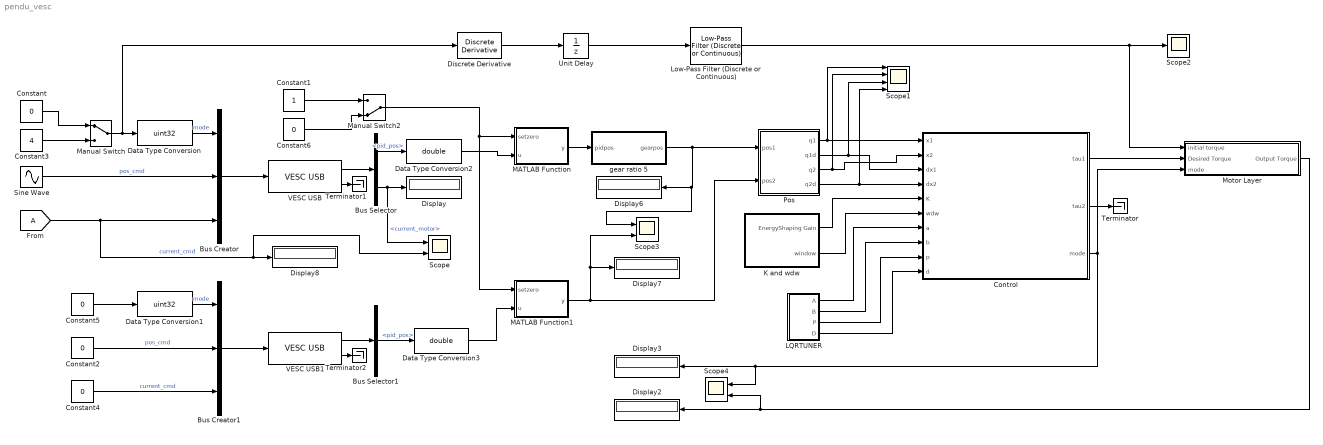
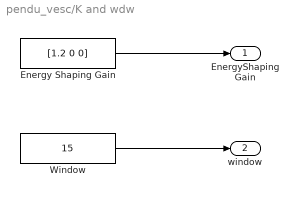
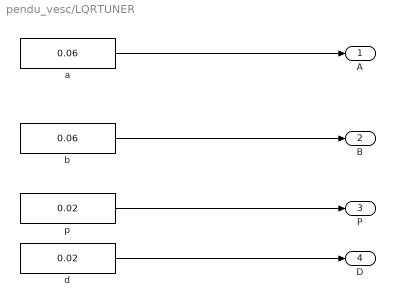
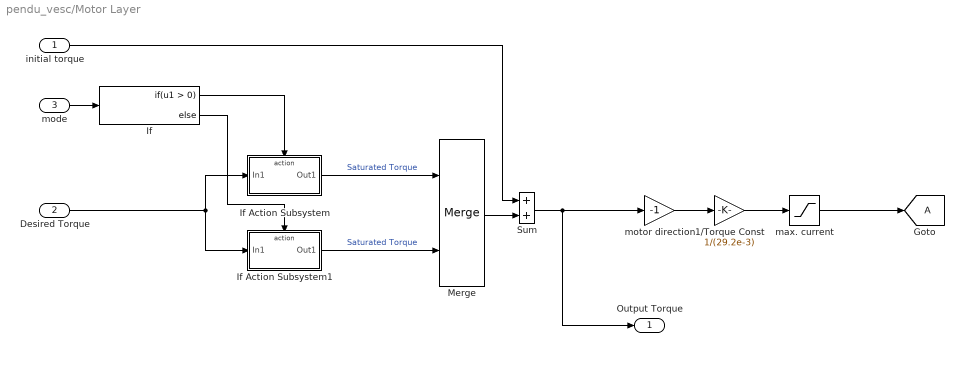
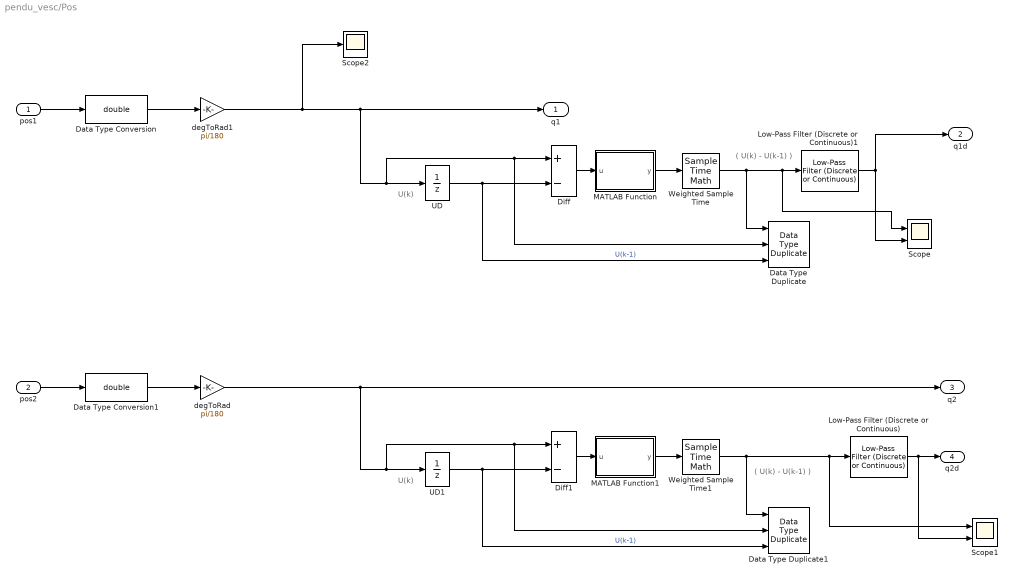
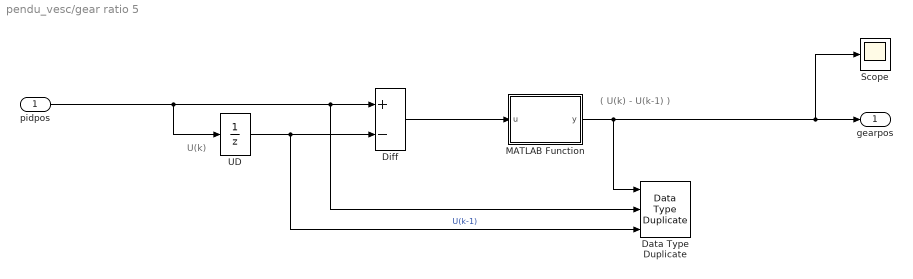
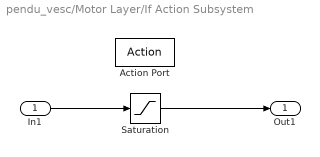
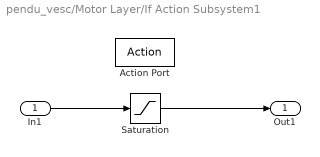
== matlab function pendu_vesc/MATLAB Function ==
function y = fcn(setzero,u)

persistent initpos
if isempty(initpos)
    initpos = 0;
end

if setzero
    initpos = u + 0;
end


y = u - initpos;
y = y - 360*floor(y/360);

== matlab function pendu_vesc/Control ==
function [tau1,tau2,mode] = EnergyShaping_w_LQR(x1,x2,dx1,dx2,K,wdw,a,b,p,d)
% Match the setup in simulation
x = [x1;x2;dx1;dx2]; 

persistent model;
if isempty(model)
    model = Model();
end

%%%%
q  = x(1:2,:);
qd = x(3:4,:);

[tau,mode] = acrobotControlLaw_LQR(x,wdw,a,b,p,d);

if isempty(tau) % if LQR control law is not applicable, 
                %    then using Energy Shaping approach
    mode = 0;
    g  = model.g;
    %
    l1 = model.l1; lc1 = model.lc1; l2 = model.l2; lc2 = model.lc2;
    m1 = model.m1; m2 = model.m2;
    I1 = model.I1; I2 = model.I2;
    b1 = model.b1; b2 = model.b2;

    %%%%
    q  = x(1:2,:);
    qd = x(3:4,:);

    %%%%
    c = cos(q(1:2,:));  s = sin(q(1:2,:));  c12 = cos(q(1,:)+q(2,:));
    
    [M,~] = ManipulatorEquation(model, x);
    %%%% energy shaping
    E_des = m1.*g.* lc1 + m2.*g.*(l1+lc2);

    KE = 0.5*qd.'*M*qd;
    PE = -m1*g*lc1*c(1) - m2*g*(l1*c(1)+lc2*c12);
    E = KE + PE;

    E_tilda = E_des - E;

%     ke = 1;    %0.75  %5   %0.05;
%     kd = 0*ke/10;  %25   %ke/15;
%     ks = 0*kd/5;   %8   %kd/10;
    ke = K(1);
    kd = K(2)*ke;
    ks = K(3)*kd;
    
    q(1) = q(1) - 2*pi*floor(q(1)./(2*pi));
    d_tilda = pi-q(1);
    s_tilda = 0-qd(1);
    
    % P-saturation
    PD = d_tilda*kd + s_tilda*ks;
    if abs(PD) > 1
        PD = 1 * sign(PD);
    end
    
    tau = [(ke.*E_tilda.*qd(1)+PD); 0]; 
%     tau = [(0); 0]; 
    
end
tau=(18/90)*tau;
tau1 = tau(1);

tau2 = tau(2);
end

== matlab function pendu_vesc/MATLAB Function1 ==
function y = fcn(setzero,u)

persistent initpos
if isempty(initpos)
    initpos = 0;
end

if setzero
    initpos = u + 0;
end


y = u - initpos;
y = y - 360*floor(y/360);

== matlab function pendu_vesc/Pos/MATLAB Function ==
function y = fcn(u)

u_rev = (u >= 0)*(2*pi - u) + (u < 0)*(2*pi + u);

if abs(u_rev) > abs(u)
   y = u;
else
   y = (u < 0)*u_rev - (u >= 0)*u_rev;
end

== matlab function pendu_vesc/Pos/MATLAB Function1 ==
function y = fcn(u)

u_rev = (u >= 0)*(2*pi - u) + (u < 0)*(2*pi + u);

if abs(u_rev) > abs(u)
   y = u;
else
   y = (u < 0)*u_rev - (u >= 0)*u_rev;
end

== matlab function pendu_vesc/gear ratio 5/MATLAB Function ==
function y = fcn(u)

persistent pos1
if isempty(pos1)
    pos1 = 0;
end

u_rev = (u >= 0)*(360 - u) + (u < 0)*(360 + u);
if abs(u_rev) < abs(u)
   u = (u < 0)*u_rev - (u >= 0)*u_rev;
end

u = u/5;
pos1 = pos1 + u;
pos1 = mod((pos1),360);
y = pos1;

end

//
// Academic License - for use in teaching, academic research, and meeting
// course requirements at degree granting institutions only.  Not for
// government, commercial, or other organizational use.
//
// File: pendu_vesc.cpp
//
// Code generated for Simulink model 'pendu_vesc'.
//
// Model version                  : 1.79
// Simulink Coder version         : 9.0 (R2018b) 24-May-2018
// C/C++ source code generated on : Mon Jun 15 15:44:10 2020
//
// Target selection: ert.tlc
// Embedded hardware selection: ARM Compatible->ARM Cortex
// Code generation objectives: Unspecified
// Validation result: Not run
//
#include "pendu_vesc.h"
#include "pendu_vesc_private.h"
#include "pendu_vesc_dt.h"

// Block signals (default storage)
B_pendu_vesc_T pendu_vesc_B;

// Block states (default storage)
DW_pendu_vesc_T pendu_vesc_DW;

// Real-time model
RT_MODEL_pendu_vesc_T pendu_vesc_M_;
RT_MODEL_pendu_vesc_T *const pendu_vesc_M = &pendu_vesc_M_;

//
// Output and update for action system:
//    '<S8>/If Action Subsystem'
//    '<S8>/If Action Subsystem1'
//
void pendu_vesc_IfActionSubsystem(real_T rtu_In1, real_T *rty_Out1,
  P_IfActionSubsystem_pendu_ves_T *localP)
{
  // Saturate: '<S18>/Saturation'
  if (rtu_In1 > localP->Saturation_UpperSat) {
    *rty_Out1 = localP->Saturation_UpperSat;
  } else if (rtu_In1 < localP->Saturation_LowerSat) {
    *rty_Out1 = localP->Saturation_LowerSat;
  } else {
    *rty_Out1 = rtu_In1;
  }

  // End of Saturate: '<S18>/Saturation'
}

//
// Output and update for atomic system:
//    '<S9>/MATLAB Function'
//    '<S9>/MATLAB Function1'
//
void pendu_vesc_MATLABFunction(real_T rtu_u, real_T *rty_y)
{
  real_T u_rev;
  u_rev = (real_T)(rtu_u >= 0.0) * (6.2831853071795862 - rtu_u) + (real_T)(rtu_u
    < 0.0) * (6.2831853071795862 + rtu_u);
  if (std::abs(u_rev) > std::abs(rtu_u)) {
    *rty_y = rtu_u;
  } else {
    *rty_y = (real_T)(rtu_u < 0.0) * u_rev - (real_T)(rtu_u >= 0.0) * u_rev;
  }
}

// Model step function
void pendu_vesc_step(void)
{
  // local block i/o variables
  real_T rtb_uT;
  real_T rtb_uT_o;
  real_T rtb_uT_e;
  real_T rtb_TSamp;
  boolean_T rtb_Compare;
  boolean_T rtb_Compare_o;
  boolean_T rtb_Compare_c;
  static const real_T d[16] = { 56.3272, 49.3325, 11.1626, 4.3446, 49.3325,
    45.0528, 9.9269, 3.866, 11.1626, 9.9269, 2.2983, 0.894, 4.3446, 3.866, 0.894,
    0.3492 };

  real_T rtb_Integrator_p;
  int32_T i;
  int32_T tau_size_idx_1;
  int32_T x_tilda_tmp;

  // Reset subsysRan breadcrumbs
  srClearBC(pendu_vesc_DW.IfActionSubsystem.IfActionSubsystem_SubsysRanBC);

  // RelationalOperator: '<S26>/Compare' incorporates:
  //   Constant: '<S24>/Time constant'
  //   Constant: '<S26>/Constant'
  //   Sum: '<S24>/Sum1'

  rtb_Compare = (pendu_vesc_P.LowPassFilterDiscreteorContin_g -
                 pendu_vesc_B.Probe_l[0] <= pendu_vesc_P.Constant_Value_i);

  // ManualSwitch: '<Root>/Manual Switch2' incorporates:
  //   Constant: '<Root>/Constant1'
  //   Constant: '<Root>/Constant6'

  if (pendu_vesc_P.ManualSwitch2_CurrentSetting == 1) {
    pendu_vesc_B.ManualSwitch2 = pendu_vesc_P.Constant1_Value;
  } else {
    pendu_vesc_B.ManualSwitch2 = pendu_vesc_P.Constant6_Value;
  }

  // End of ManualSwitch: '<Root>/Manual Switch2'

  // ManualSwitch: '<Root>/Manual Switch' incorporates:
  //   Constant: '<Root>/Constant'
  //   Constant: '<Root>/Constant3'

  if (pendu_vesc_P.ManualSwitch_CurrentSetting == 1) {
    pendu_vesc_B.ManualSwitch = pendu_vesc_P.Constant_Value;
  } else {
    pendu_vesc_B.ManualSwitch = pendu_vesc_P.Constant3_Value;
  }

  // End of ManualSwitch: '<Root>/Manual Switch'

  // Outputs for Atomic SubSystem: '<Root>/VESC USB'
  // S-Function (sf_vesc_usb): '<S10>/S-Function Builder5' incorporates:
  //   Constant: '<S10>/PAR_CURR_LIMS'
  //   Constant: '<S10>/PAR_PID_GAINS'

  sf_vesc_usb_Outputs_wrapper(&pendu_vesc_B.SFunctionBuilder5_o1_c,
    &pendu_vesc_B.SFunctionBuilder5_o2_b, &pendu_vesc_B.SFunctionBuilder5_o3_o,
    &pendu_vesc_DW.SFunctionBuilder5_DSTATE_i,
    &pendu_vesc_DW.SFunctionBuilder5_PWORK_k, pendu_vesc_P.SFunctionBuilder5_P1,
    15);

  // SignalConversion: '<S10>/BusConversion_InsertedFor_Bus Selector2_at_inport_0' 
  pendu_vesc_B.l_current_max_l =
    pendu_vesc_B.SFunctionBuilder5_o2_b.l_current_max;

  // SignalConversion: '<S10>/BusConversion_InsertedFor_Bus Selector2_at_inport_0' 
  pendu_vesc_B.l_current_min_b =
    pendu_vesc_B.SFunctionBuilder5_o2_b.l_current_min;

  // SignalConversion: '<S10>/BusConversion_InsertedFor_Bus Selector2_at_inport_0' 
  pendu_vesc_B.l_in_current_max_d =
    pendu_vesc_B.SFunctionBuilder5_o2_b.l_in_current_max;

  // SignalConversion: '<S10>/BusConversion_InsertedFor_Bus Selector2_at_inport_0' 
  pendu_vesc_B.l_in_current_min_p =
    pendu_vesc_B.SFunctionBuilder5_o2_b.l_in_current_min;

  // SignalConversion: '<S10>/BusConversion_InsertedFor_Bus Selector2_at_inport_0' 
  pendu_vesc_B.l_abs_current_max_e =
    pendu_vesc_B.SFunctionBuilder5_o2_b.l_abs_current_max;

  // SignalConversion: '<S10>/BusConversion_InsertedFor_Bus Selector1_at_inport_0' 
  pendu_vesc_B.p_pid_kp_m = pendu_vesc_B.SFunctionBuilder5_o2_b.p_pid_kp;

  // SignalConversion: '<S10>/BusConversion_InsertedFor_Bus Selector1_at_inport_0' 
  pendu_vesc_B.p_pid_ki_k = pendu_vesc_B.SFunctionBuilder5_o2_b.p_pid_ki;

  // SignalConversion: '<S10>/BusConversion_InsertedFor_Bus Selector1_at_inport_0' 
  pendu_vesc_B.p_pid_kd_m = pendu_vesc_B.SFunctionBuilder5_o2_b.p_pid_kd;

  // SignalConversion: '<S10>/BusConversion_InsertedFor_Bus Selector1_at_inport_0' 
  pendu_vesc_B.p_pid_kd_filter_p =
    pendu_vesc_B.SFunctionBuilder5_o2_b.p_pid_kd_filter;

  // SignalConversion: '<S10>/BusConversion_InsertedFor_Bus Selector1_at_inport_0' 
  pendu_vesc_B.p_pid_ang_div_j =
    pendu_vesc_B.SFunctionBuilder5_o2_b.p_pid_ang_div;

  // Switch: '<S10>/Switch' incorporates:
  //   Constant: '<S10>/PAR_MASK_MODE'
  //   DataTypeConversion: '<Root>/Data Type Conversion'

  if (pendu_vesc_P.PAR_MASK_MODE_Value != 0U) {
    pendu_vesc_B.Switch_d = pendu_vesc_P.PAR_MASK_MODE_Value;
  } else {
    // DataTypeConversion: '<Root>/Data Type Conversion'
    pendu_vesc_B.M12 = std::floor(pendu_vesc_B.ManualSwitch);
    if (rtIsNaN(pendu_vesc_B.M12) || rtIsInf(pendu_vesc_B.M12)) {
      pendu_vesc_B.M12 = 0.0;
    } else {
      pendu_vesc_B.M12 = std::fmod(pendu_vesc_B.M12, 4.294967296E+9);
    }

    pendu_vesc_B.Switch_d = pendu_vesc_B.M12 < 0.0 ? (uint32_T)-(int32_T)
      (uint32_T)-pendu_vesc_B.M12 : (uint32_T)pendu_vesc_B.M12;
  }

  // End of Switch: '<S10>/Switch'
  // End of Outputs for SubSystem: '<Root>/VESC USB'

  // Outputs for Atomic SubSystem: '<Root>/VESC USB1'
  // S-Function (sf_vesc_usb): '<S11>/S-Function Builder5' incorporates:
  //   Constant: '<Root>/Constant2'
  //   Constant: '<Root>/Constant4'
  //   Constant: '<S11>/PAR_CURR_LIMS'
  //   Constant: '<S11>/PAR_PID_GAINS'

  sf_vesc_usb_Outputs_wrapper(&pendu_vesc_B.SFunctionBuilder5_o1,
    &pendu_vesc_B.SFunctionBuilder5_o2, &pendu_vesc_B.SFunctionBuilder5_o3,
    &pendu_vesc_DW.SFunctionBuilder5_DSTATE,
    &pendu_vesc_DW.SFunctionBuilder5_PWORK, pendu_vesc_P.SFunctionBuilder5_P1_h,
    15);

  // SignalConversion: '<S11>/BusConversion_InsertedFor_Bus Selector2_at_inport_0' 
  pendu_vesc_B.l_current_max = pendu_vesc_B.SFunctionBuilder5_o2.l_current_max;

  // SignalConversion: '<S11>/BusConversion_InsertedFor_Bus Selector2_at_inport_0' 
  pendu_vesc_B.l_current_min = pendu_vesc_B.SFunctionBuilder5_o2.l_current_min;

  // SignalConversion: '<S11>/BusConversion_InsertedFor_Bus Selector2_at_inport_0' 
  pendu_vesc_B.l_in_current_max =
    pendu_vesc_B.SFunctionBuilder5_o2.l_in_current_max;

  // SignalConversion: '<S11>/BusConversion_InsertedFor_Bus Selector2_at_inport_0' 
  pendu_vesc_B.l_in_current_min =
    pendu_vesc_B.SFunctionBuilder5_o2.l_in_current_min;

  // SignalConversion: '<S11>/BusConversion_InsertedFor_Bus Selector2_at_inport_0' 
  pendu_vesc_B.l_abs_current_max =
    pendu_vesc_B.SFunctionBuilder5_o2.l_abs_current_max;

  // SignalConversion: '<S11>/BusConversion_InsertedFor_Bus Selector1_at_inport_0' 
  pendu_vesc_B.p_pid_kp = pendu_vesc_B.SFunctionBuilder5_o2.p_pid_kp;

  // SignalConversion: '<S11>/BusConversion_InsertedFor_Bus Selector1_at_inport_0' 
  pendu_vesc_B.p_pid_ki = pendu_vesc_B.SFunctionBuilder5_o2.p_pid_ki;

  // SignalConversion: '<S11>/BusConversion_InsertedFor_Bus Selector1_at_inport_0' 
  pendu_vesc_B.p_pid_kd = pendu_vesc_B.SFunctionBuilder5_o2.p_pid_kd;

  // SignalConversion: '<S11>/BusConversion_InsertedFor_Bus Selector1_at_inport_0' 
  pendu_vesc_B.p_pid_kd_filter =
    pendu_vesc_B.SFunctionBuilder5_o2.p_pid_kd_filter;

  // SignalConversion: '<S11>/BusConversion_InsertedFor_Bus Selector1_at_inport_0' 
  pendu_vesc_B.p_pid_ang_div = pendu_vesc_B.SFunctionBuilder5_o2.p_pid_ang_div;

  // Switch: '<S11>/Switch' incorporates:
  //   Constant: '<S11>/PAR_MASK_MODE'
  //   DataTypeConversion: '<Root>/Data Type Conversion1'

  if (pendu_vesc_P.PAR_MASK_MODE_Value_k != 0U) {
    pendu_vesc_B.Switch = pendu_vesc_P.PAR_MASK_MODE_Value_k;
  } else {
    // DataTypeConversion: '<Root>/Data Type Conversion1' incorporates:
    //   Constant: '<Root>/Constant5'

    pendu_vesc_B.M12 = std::floor(pendu_vesc_P.Constant5_Value);
    if (rtIsNaN(pendu_vesc_B.M12) || rtIsInf(pendu_vesc_B.M12)) {
      pendu_vesc_B.M12 = 0.0;
    } else {
      pendu_vesc_B.M12 = std::fmod(pendu_vesc_B.M12, 4.294967296E+9);
    }

    pendu_vesc_B.Switch = pendu_vesc_B.M12 < 0.0 ? (uint32_T)-(int32_T)(uint32_T)
      -pendu_vesc_B.M12 : (uint32_T)pendu_vesc_B.M12;
  }

  // End of Switch: '<S11>/Switch'
  // End of Outputs for SubSystem: '<Root>/VESC USB1'

  // MATLAB Function: '<Root>/MATLAB Function1' incorporates:
  //   DataTypeConversion: '<Root>/Data Type Conversion3'

  if (pendu_vesc_B.ManualSwitch2 != 0.0) {
    pendu_vesc_DW.initpos = pendu_vesc_B.SFunctionBuilder5_o1.pid_pos;
  }

  pendu_vesc_B.y_d = pendu_vesc_B.SFunctionBuilder5_o1.pid_pos -
    pendu_vesc_DW.initpos;
  pendu_vesc_B.y_d -= std::floor(pendu_vesc_B.y_d / 360.0) * 360.0;

  // End of MATLAB Function: '<Root>/MATLAB Function1'

  // Gain: '<S9>/degToRad'
  pendu_vesc_B.degToRad = pendu_vesc_P.degToRad_Gain * pendu_vesc_B.y_d;

  // MATLAB Function: '<S9>/MATLAB Function1' incorporates:
  //   Sum: '<S9>/Diff1'
  //   UnitDelay: '<S9>/UD1'
  //
  //  Block description for '<S9>/Diff1':
  //
  //   Add in CPU
  //
  //  Block description for '<S9>/UD1':
  //
  //   Store in Global RAM

  pendu_vesc_MATLABFunction(pendu_vesc_B.degToRad - pendu_vesc_DW.UD1_DSTATE,
    &rtb_Integrator_p);

  // SampleTimeMath: '<S9>/Weighted Sample Time1'
  //
  //  About '<S9>/Weighted Sample Time1':
  //   y = u * K where K = 1 / ( w * Ts )

  pendu_vesc_B.WeightedSampleTime1 = rtb_Integrator_p *
    pendu_vesc_P.WeightedSampleTime1_WtEt;

  // Gain: '<S20>/K'
  rtb_Integrator_p = pendu_vesc_P.LowPassFilterDiscreteorContinuo *
    pendu_vesc_B.WeightedSampleTime1;

  // DiscreteIntegrator: '<S28>/Integrator'
  if (pendu_vesc_DW.Integrator_IC_LOADING != 0) {
    pendu_vesc_DW.Integrator_DSTATE = rtb_Integrator_p;
    if (pendu_vesc_DW.Integrator_DSTATE >= pendu_vesc_P.Integrator_UpperSat) {
      pendu_vesc_DW.Integrator_DSTATE = pendu_vesc_P.Integrator_UpperSat;
    } else {
      if (pendu_vesc_DW.Integrator_DSTATE <= pendu_vesc_P.Integrator_LowerSat) {
        pendu_vesc_DW.Integrator_DSTATE = pendu_vesc_P.Integrator_LowerSat;
      }
    }
  }

  if (rtb_Compare || (pendu_vesc_DW.Integrator_PrevResetState != 0)) {
    pendu_vesc_DW.Integrator_DSTATE = rtb_Integrator_p;
    if (pendu_vesc_DW.Integrator_DSTATE >= pendu_vesc_P.Integrator_UpperSat) {
      pendu_vesc_DW.Integrator_DSTATE = pendu_vesc_P.Integrator_UpperSat;
    } else {
      if (pendu_vesc_DW.Integrator_DSTATE <= pendu_vesc_P.Integrator_LowerSat) {
        pendu_vesc_DW.Integrator_DSTATE = pendu_vesc_P.Integrator_LowerSat;
      }
    }
  }

  if (pendu_vesc_DW.Integrator_DSTATE >= pendu_vesc_P.Integrator_UpperSat) {
    pendu_vesc_DW.Integrator_DSTATE = pendu_vesc_P.Integrator_UpperSat;
  } else {
    if (pendu_vesc_DW.Integrator_DSTATE <= pendu_vesc_P.Integrator_LowerSat) {
      pendu_vesc_DW.Integrator_DSTATE = pendu_vesc_P.Integrator_LowerSat;
    }
  }

  // Saturate: '<S28>/Saturation' incorporates:
  //   DiscreteIntegrator: '<S28>/Integrator'

  if (pendu_vesc_DW.Integrator_DSTATE > pendu_vesc_P.Saturation_UpperSat) {
    pendu_vesc_B.Saturation = pendu_vesc_P.Saturation_UpperSat;
  } else if (pendu_vesc_DW.Integrator_DSTATE < pendu_vesc_P.Saturation_LowerSat)
  {
    pendu_vesc_B.Saturation = pendu_vesc_P.Saturation_LowerSat;
  } else {
    pendu_vesc_B.Saturation = pendu_vesc_DW.Integrator_DSTATE;
  }

  // End of Saturate: '<S28>/Saturation'
  // MinMax: '<S24>/Max' incorporates:
  //   Constant: '<S24>/Time constant'

  if ((pendu_vesc_B.Probe_l[0] > pendu_vesc_P.LowPassFilterDiscreteorContin_g) ||
      rtIsNaN(pendu_vesc_P.LowPassFilterDiscreteorContin_g)) {
    pendu_vesc_B.Integrator_o = pendu_vesc_B.Probe_l[0];
  } else {
    pendu_vesc_B.Integrator_o = pendu_vesc_P.LowPassFilterDiscreteorContin_g;
  }

  // End of MinMax: '<S24>/Max'

  // Product: '<S20>/1//T' incorporates:
  //   Fcn: '<S24>/Avoid Divide by Zero'
  //   Sum: '<S20>/Sum1'

  rtb_uT = 1.0 / ((real_T)(pendu_vesc_B.Integrator_o == 0.0) *
                  2.2204460492503131e-16 + pendu_vesc_B.Integrator_o) *
    (rtb_Integrator_p - pendu_vesc_B.Saturation);

  // MATLAB Function: '<Root>/MATLAB Function' incorporates:
  //   DataTypeConversion: '<Root>/Data Type Conversion2'

  if (pendu_vesc_B.ManualSwitch2 != 0.0) {
    pendu_vesc_DW.initpos_d = pendu_vesc_B.SFunctionBuilder5_o1_c.pid_pos;
  }

  pendu_vesc_B.y_h = pendu_vesc_B.SFunctionBuilder5_o1_c.pid_pos -
    pendu_vesc_DW.initpos_d;
  pendu_vesc_B.y_h -= std::floor(pendu_vesc_B.y_h / 360.0) * 360.0;

  // End of MATLAB Function: '<Root>/MATLAB Function'

  // Sum: '<S12>/Diff' incorporates:
  //   UnitDelay: '<S12>/UD'
  //
  //  Block description for '<S12>/Diff':
  //
  //   Add in CPU
  //
  //  Block description for '<S12>/UD':
  //
  //   Store in Global RAM

  pendu_vesc_B.ManualSwitch2 = pendu_vesc_B.y_h - pendu_vesc_DW.UD_DSTATE;

  // MATLAB Function: '<S12>/MATLAB Function'
  rtb_Integrator_p = (real_T)(pendu_vesc_B.ManualSwitch2 >= 0.0) * (360.0 -
    pendu_vesc_B.ManualSwitch2) + (real_T)(pendu_vesc_B.ManualSwitch2 < 0.0) *
    (360.0 + pendu_vesc_B.ManualSwitch2);
  if (std::abs(rtb_Integrator_p) < std::abs(pendu_vesc_B.ManualSwitch2)) {
    pendu_vesc_B.ManualSwitch2 = (real_T)(pendu_vesc_B.ManualSwitch2 < 0.0) *
      rtb_Integrator_p - (real_T)(pendu_vesc_B.ManualSwitch2 >= 0.0) *
      rtb_Integrator_p;
  }

  pendu_vesc_B.ManualSwitch2 /= 5.0;
  pendu_vesc_DW.pos1 += pendu_vesc_B.ManualSwitch2;
  pendu_vesc_B.ManualSwitch2 = pendu_vesc_DW.pos1;
  if ((!rtIsInf(pendu_vesc_B.ManualSwitch2)) && (!rtIsNaN
       (pendu_vesc_B.ManualSwitch2))) {
    if (pendu_vesc_B.ManualSwitch2 == 0.0) {
      pendu_vesc_DW.pos1 = 0.0;
    } else {
      pendu_vesc_DW.pos1 = std::fmod(pendu_vesc_B.ManualSwitch2, 360.0);
      if (pendu_vesc_DW.pos1 == 0.0) {
        pendu_vesc_DW.pos1 = 0.0;
      } else {
        if (pendu_vesc_B.ManualSwitch2 < 0.0) {
          pendu_vesc_DW.pos1 += 360.0;
        }
      }
    }
  } else {
    pendu_vesc_DW.pos1 = (rtNaN);
  }

  pendu_vesc_B.y = pendu_vesc_DW.pos1;

  // End of MATLAB Function: '<S12>/MATLAB Function'

  // Gain: '<S9>/degToRad1'
  pendu_vesc_B.degToRad1 = pendu_vesc_P.degToRad1_Gain * pendu_vesc_B.y;

  // RelationalOperator: '<S31>/Compare' incorporates:
  //   Constant: '<S29>/Time constant'
  //   Constant: '<S31>/Constant'
  //   Sum: '<S29>/Sum1'

  rtb_Compare_o = (pendu_vesc_P.LowPassFilterDiscreteorContin_j -
                   pendu_vesc_B.Probe_g[0] <= pendu_vesc_P.Constant_Value_c);

  // MATLAB Function: '<S9>/MATLAB Function' incorporates:
  //   Sum: '<S9>/Diff'
  //   UnitDelay: '<S9>/UD'
  //
  //  Block description for '<S9>/Diff':
  //
  //   Add in CPU
  //
  //  Block description for '<S9>/UD':
  //
  //   Store in Global RAM

  pendu_vesc_MATLABFunction(pendu_vesc_B.degToRad1 - pendu_vesc_DW.UD_DSTATE_i,
    &rtb_Integrator_p);

  // SampleTimeMath: '<S9>/Weighted Sample Time'
  //
  //  About '<S9>/Weighted Sample Time':
  //   y = u * K where K = 1 / ( w * Ts )

  pendu_vesc_B.WeightedSampleTime = rtb_Integrator_p *
    pendu_vesc_P.WeightedSampleTime_WtEt;

  // Gain: '<S21>/K'
  pendu_vesc_B.ManualSwitch2 = pendu_vesc_P.LowPassFilterDiscreteorContin_o *
    pendu_vesc_B.WeightedSampleTime;

  // DiscreteIntegrator: '<S33>/Integrator'
  if (pendu_vesc_DW.Integrator_IC_LOADING_h != 0) {
    pendu_vesc_DW.Integrator_DSTATE_c = pendu_vesc_B.ManualSwitch2;
    if (pendu_vesc_DW.Integrator_DSTATE_c >= pendu_vesc_P.Integrator_UpperSat_d)
    {
      pendu_vesc_DW.Integrator_DSTATE_c = pendu_vesc_P.Integrator_UpperSat_d;
    } else {
      if (pendu_vesc_DW.Integrator_DSTATE_c <=
          pendu_vesc_P.Integrator_LowerSat_k) {
        pendu_vesc_DW.Integrator_DSTATE_c = pendu_vesc_P.Integrator_LowerSat_k;
      }
    }
  }

  if (rtb_Compare_o || (pendu_vesc_DW.Integrator_PrevResetState_j != 0)) {
    pendu_vesc_DW.Integrator_DSTATE_c = pendu_vesc_B.ManualSwitch2;
    if (pendu_vesc_DW.Integrator_DSTATE_c >= pendu_vesc_P.Integrator_UpperSat_d)
    {
      pendu_vesc_DW.Integrator_DSTATE_c = pendu_vesc_P.Integrator_UpperSat_d;
    } else {
      if (pendu_vesc_DW.Integrator_DSTATE_c <=
          pendu_vesc_P.Integrator_LowerSat_k) {
        pendu_vesc_DW.Integrator_DSTATE_c = pendu_vesc_P.Integrator_LowerSat_k;
      }
    }
  }

  if (pendu_vesc_DW.Integrator_DSTATE_c >= pendu_vesc_P.Integrator_UpperSat_d) {
    pendu_vesc_DW.Integrator_DSTATE_c = pendu_vesc_P.Integrator_UpperSat_d;
  } else {
    if (pendu_vesc_DW.Integrator_DSTATE_c <= pendu_vesc_P.Integrator_LowerSat_k)
    {
      pendu_vesc_DW.Integrator_DSTATE_c = pendu_vesc_P.Integrator_LowerSat_k;
    }
  }

  // Saturate: '<S33>/Saturation' incorporates:
  //   DiscreteIntegrator: '<S33>/Integrator'

  if (pendu_vesc_DW.Integrator_DSTATE_c > pendu_vesc_P.Saturation_UpperSat_c) {
    pendu_vesc_B.Saturation_e = pendu_vesc_P.Saturation_UpperSat_c;
  } else if (pendu_vesc_DW.Integrator_DSTATE_c <
             pendu_vesc_P.Saturation_LowerSat_m) {
    pendu_vesc_B.Saturation_e = pendu_vesc_P.Saturation_LowerSat_m;
  } else {
    pendu_vesc_B.Saturation_e = pendu_vesc_DW.Integrator_DSTATE_c;
  }

  // End of Saturate: '<S33>/Saturation'

  // MATLAB Function: '<Root>/Control' incorporates:
  //   Constant: '<S3>/Energy Shaping Gain'
  //   Constant: '<S3>/Window'
  //   Constant: '<S4>/a'
  //   Constant: '<S4>/b'
  //   Constant: '<S4>/d'
  //   Constant: '<S4>/p'

  rtb_Integrator_p = pendu_vesc_B.degToRad1 - std::floor(pendu_vesc_B.degToRad1 /
    6.2831853071795862) * 6.2831853071795862;
  pendu_vesc_B.Integrator_o = pendu_vesc_B.degToRad - std::floor
    ((pendu_vesc_B.degToRad + 3.1415926535897931) / 6.2831853071795862) *
    6.2831853071795862;
  pendu_vesc_B.x_tilda[0] = rtb_Integrator_p - 3.1415926535897931;
  pendu_vesc_B.x_tilda[2] = pendu_vesc_B.Saturation_e;
  pendu_vesc_B.x_tilda[1] = pendu_vesc_B.Integrator_o;
  pendu_vesc_B.x_tilda[3] = pendu_vesc_B.Saturation;
  pendu_vesc_B.M12 = 0.0;
  for (i = 0; i < 4; i++) {
    x_tilda_tmp = i << 2;
    pendu_vesc_B.kd = d[x_tilda_tmp + 3] * pendu_vesc_B.Saturation +
      (d[x_tilda_tmp + 2] * pendu_vesc_B.Saturation_e + (d[x_tilda_tmp + 1] *
        pendu_vesc_B.Integrator_o + (rtb_Integrator_p - 3.1415926535897931) *
        d[x_tilda_tmp]));
    pendu_vesc_B.M12 += pendu_vesc_B.kd * pendu_vesc_B.x_tilda[i];
  }

  if (pendu_vesc_B.M12 < pendu_vesc_P.Window_Value) {
    pendu_vesc_B.dv0[0] = -25.3884 * pendu_vesc_P.a_Value;
    pendu_vesc_B.dv0[2] = -24.2524 * pendu_vesc_P.b_Value;
    pendu_vesc_B.dv0[4] = -4.8296 * pendu_vesc_P.p_Value;
    pendu_vesc_B.dv0[6] = -2.955 * pendu_vesc_P.d_Value;
    pendu_vesc_B.dv0[1] = 0.0;
    pendu_vesc_B.dv0[3] = 0.0;
    pendu_vesc_B.dv0[5] = 0.0;
    pendu_vesc_B.dv0[7] = 0.0;
    x_tilda_tmp = 2;
    tau_size_idx_1 = 1;
    for (i = 0; i < 2; i++) {
      pendu_vesc_B.M12 = pendu_vesc_B.dv0[i + 6] * (0.0 -
        pendu_vesc_B.Saturation) + (pendu_vesc_B.dv0[i + 4] * (0.0 -
        pendu_vesc_B.Saturation_e) + (pendu_vesc_B.dv0[i + 2] * (0.0 -
        pendu_vesc_B.Integrator_o) + (3.1415926535897931 - rtb_Integrator_p) *
        pendu_vesc_B.dv0[i]));
      pendu_vesc_B.tau_data[i] = pendu_vesc_B.M12;
    }
  } else {
    x_tilda_tmp = 0;
    tau_size_idx_1 = 0;
  }

  pendu_vesc_B.mode = 1.0;
  if ((x_tilda_tmp == 0) || (tau_size_idx_1 == 0)) {
    pendu_vesc_B.mode = 0.0;
    rtb_Integrator_p = std::cos(pendu_vesc_B.degToRad1);
    pendu_vesc_B.Integrator_o = std::cos(pendu_vesc_B.degToRad);
    pendu_vesc_B.M12 = 0.001590443925 * pendu_vesc_B.Integrator_o + 0.0010009992;
    pendu_vesc_B.kd = pendu_vesc_P.EnergyShapingGain_Value[1] *
      pendu_vesc_P.EnergyShapingGain_Value[0];
    pendu_vesc_B.kd = (3.1415926535897931 - (pendu_vesc_B.degToRad1 - std::floor
      (pendu_vesc_B.degToRad1 / 6.2831853071795862) * 6.2831853071795862)) *
      pendu_vesc_B.kd + (0.0 - pendu_vesc_B.Saturation_e) *
      (pendu_vesc_P.EnergyShapingGain_Value[2] * pendu_vesc_B.kd);
    if (std::abs(pendu_vesc_B.kd) > 1.0) {
      if (pendu_vesc_B.kd < 0.0) {
        pendu_vesc_B.kd = -1.0;
      } else if (pendu_vesc_B.kd > 0.0) {
        pendu_vesc_B.kd = 1.0;
      } else if (pendu_vesc_B.kd == 0.0) {
        pendu_vesc_B.kd = 0.0;
      } else {
        pendu_vesc_B.kd = (rtNaN);
      }
    }

    x_tilda_tmp = 2;
    pendu_vesc_B.tau_data[0] = (0.38753445581999996 - ((((0.00318088785 *
      pendu_vesc_B.Integrator_o + 0.00714846245) * (0.5 *
      pendu_vesc_B.Saturation_e) + 0.5 * pendu_vesc_B.Saturation *
      pendu_vesc_B.M12) * pendu_vesc_B.Saturation_e + (0.5 *
      pendu_vesc_B.Saturation_e * pendu_vesc_B.M12 + 0.5 *
      pendu_vesc_B.Saturation * 0.0010009992) * pendu_vesc_B.Saturation) +
      (-0.08232289092 * rtb_Integrator_p - (std::cos(pendu_vesc_B.degToRad1 +
      pendu_vesc_B.degToRad) * 0.06783 + 0.2075 * rtb_Integrator_p) * 1.10853)))
      * pendu_vesc_P.EnergyShapingGain_Value[0] * pendu_vesc_B.Saturation_e +
      pendu_vesc_B.kd;
    pendu_vesc_B.tau_data[1] = 0.0;
  }

  x_tilda_tmp--;
  for (i = 0; i <= x_tilda_tmp; i++) {
    pendu_vesc_B.tau_data[i] *= 0.2;
  }

  // If: '<S8>/If' incorporates:
  //   MATLAB Function: '<Root>/Control'

  if (pendu_vesc_B.mode > 0.0) {
    // Outputs for IfAction SubSystem: '<S8>/If Action Subsystem' incorporates:
    //   ActionPort: '<S18>/Action Port'

    pendu_vesc_IfActionSubsystem(pendu_vesc_B.tau_data[0], &rtb_Integrator_p,
      &pendu_vesc_P.IfActionSubsystem);

    // End of Outputs for SubSystem: '<S8>/If Action Subsystem'
  } else {
    // Outputs for IfAction SubSystem: '<S8>/If Action Subsystem1' incorporates:
    //   ActionPort: '<S19>/Action Port'

    pendu_vesc_IfActionSubsystem(pendu_vesc_B.tau_data[0], &rtb_Integrator_p,
      &pendu_vesc_P.IfActionSubsystem1);

    // End of Outputs for SubSystem: '<S8>/If Action Subsystem1'
  }

  // End of If: '<S8>/If'

  // RelationalOperator: '<S15>/Compare' incorporates:
  //   Constant: '<S13>/Time constant'
  //   Constant: '<S15>/Constant'
  //   Sum: '<S13>/Sum1'

  rtb_Compare_c = (pendu_vesc_P.LowPassFilterDiscreteorConti_jv -
                   pendu_vesc_B.Probe[0] <= pendu_vesc_P.Constant_Value_ib);

  // Gain: '<S5>/K' incorporates:
  //   UnitDelay: '<Root>/Unit Delay'

  pendu_vesc_B.Integrator_o = pendu_vesc_P.LowPassFilterDiscreteorContin_e *
    pendu_vesc_DW.UnitDelay_DSTATE;

  // DiscreteIntegrator: '<S17>/Integrator'
  if (pendu_vesc_DW.Integrator_IC_LOADING_p != 0) {
    pendu_vesc_DW.Integrator_DSTATE_k = pendu_vesc_B.Integrator_o;
    if (pendu_vesc_DW.Integrator_DSTATE_k >= pendu_vesc_P.Integrator_UpperSat_n)
    {
      pendu_vesc_DW.Integrator_DSTATE_k = pendu_vesc_P.Integrator_UpperSat_n;
    } else {
      if (pendu_vesc_DW.Integrator_DSTATE_k <=
          pendu_vesc_P.Integrator_LowerSat_a) {
        pendu_vesc_DW.Integrator_DSTATE_k = pendu_vesc_P.Integrator_LowerSat_a;
      }
    }
  }

  if (rtb_Compare_c || (pendu_vesc_DW.Integrator_PrevResetState_c != 0)) {
    pendu_vesc_DW.Integrator_DSTATE_k = pendu_vesc_B.Integrator_o;
    if (pendu_vesc_DW.Integrator_DSTATE_k >= pendu_vesc_P.Integrator_UpperSat_n)
    {
      pendu_vesc_DW.Integrator_DSTATE_k = pendu_vesc_P.Integrator_UpperSat_n;
    } else {
      if (pendu_vesc_DW.Integrator_DSTATE_k <=
          pendu_vesc_P.Integrator_LowerSat_a) {
        pendu_vesc_DW.Integrator_DSTATE_k = pendu_vesc_P.Integrator_LowerSat_a;
      }
    }
  }

  if (pendu_vesc_DW.Integrator_DSTATE_k >= pendu_vesc_P.Integrator_UpperSat_n) {
    pendu_vesc_DW.Integrator_DSTATE_k = pendu_vesc_P.Integrator_UpperSat_n;
  } else {
    if (pendu_vesc_DW.Integrator_DSTATE_k <= pendu_vesc_P.Integrator_LowerSat_a)
    {
      pendu_vesc_DW.Integrator_DSTATE_k = pendu_vesc_P.Integrator_LowerSat_a;
    }
  }

  // Saturate: '<S17>/Saturation' incorporates:
  //   DiscreteIntegrator: '<S17>/Integrator'

  if (pendu_vesc_DW.Integrator_DSTATE_k > pendu_vesc_P.Saturation_UpperSat_o) {
    pendu_vesc_B.Saturation_b = pendu_vesc_P.Saturation_UpperSat_o;
  } else if (pendu_vesc_DW.Integrator_DSTATE_k <
             pendu_vesc_P.Saturation_LowerSat_g) {
    pendu_vesc_B.Saturation_b = pendu_vesc_P.Saturation_LowerSat_g;
  } else {
    pendu_vesc_B.Saturation_b = pendu_vesc_DW.Integrator_DSTATE_k;
  }

  // End of Saturate: '<S17>/Saturation'

  // Sum: '<S8>/Sum'
  pendu_vesc_B.Sum = pendu_vesc_B.Saturation_b + rtb_Integrator_p;

  // Gain: '<S8>/1//Torque Const' incorporates:
  //   Gain: '<S8>/motor direction'

  pendu_vesc_B.maxcurrent = pendu_vesc_P.motordirection_Gain * pendu_vesc_B.Sum *
    pendu_vesc_P.uTorqueConst_Gain;

  // Saturate: '<S8>/max. current'
  if (pendu_vesc_B.maxcurrent > pendu_vesc_P.maxcurrent_UpperSat) {
    // Gain: '<S8>/1//Torque Const'
    pendu_vesc_B.maxcurrent = pendu_vesc_P.maxcurrent_UpperSat;
  } else {
    if (pendu_vesc_B.maxcurrent < pendu_vesc_P.maxcurrent_LowerSat) {
      // Gain: '<S8>/1//Torque Const'
      pendu_vesc_B.maxcurrent = pendu_vesc_P.maxcurrent_LowerSat;
    }
  }

  // End of Saturate: '<S8>/max. current'

  // SignalConversion: '<Root>/SigConversion_InsertedFor_Bus Selector_at_outport_1' 
  pendu_vesc_B.current_motor = pendu_vesc_B.SFunctionBuilder5_o1_c.current_motor;

  // MinMax: '<S13>/Max' incorporates:
  //   Constant: '<S13>/Time constant'

  if ((pendu_vesc_B.Probe[0] > pendu_vesc_P.LowPassFilterDiscreteorConti_jv) ||
      rtIsNaN(pendu_vesc_P.LowPassFilterDiscreteorConti_jv)) {
    rtb_Integrator_p = pendu_vesc_B.Probe[0];
  } else {
    rtb_Integrator_p = pendu_vesc_P.LowPassFilterDiscreteorConti_jv;
  }

  // End of MinMax: '<S13>/Max'

  // Product: '<S5>/1//T' incorporates:
  //   Fcn: '<S13>/Avoid Divide by Zero'
  //   Sum: '<S5>/Sum1'

  rtb_uT_o = 1.0 / ((real_T)(rtb_Integrator_p == 0.0) * 2.2204460492503131e-16 +
                    rtb_Integrator_p) * (pendu_vesc_B.Integrator_o -
    pendu_vesc_B.Saturation_b);

  // MinMax: '<S29>/Max' incorporates:
  //   Constant: '<S29>/Time constant'

  if ((pendu_vesc_B.Probe_g[0] > pendu_vesc_P.LowPassFilterDiscreteorContin_j) ||
      rtIsNaN(pendu_vesc_P.LowPassFilterDiscreteorContin_j)) {
    rtb_Integrator_p = pendu_vesc_B.Probe_g[0];
  } else {
    rtb_Integrator_p = pendu_vesc_P.LowPassFilterDiscreteorContin_j;
  }

  // End of MinMax: '<S29>/Max'

  // Product: '<S21>/1//T' incorporates:
  //   Fcn: '<S29>/Avoid Divide by Zero'
  //   Sum: '<S21>/Sum1'

  rtb_uT_e = 1.0 / ((real_T)(rtb_Integrator_p == 0.0) * 2.2204460492503131e-16 +
                    rtb_Integrator_p) * (pendu_vesc_B.ManualSwitch2 -
    pendu_vesc_B.Saturation_e);

  // SampleTimeMath: '<S2>/TSamp'
  //
  //  About '<S2>/TSamp':
  //   y = u * K where K = 1 / ( w * Ts )

  rtb_TSamp = pendu_vesc_B.ManualSwitch * pendu_vesc_P.TSamp_WtEt;

  // Sum: '<S2>/Diff' incorporates:
  //   UnitDelay: '<Root>/Unit Delay'
  //   UnitDelay: '<S2>/UD'
  //
  //  Block description for '<S2>/Diff':
  //
  //   Add in CPU
  //
  //  Block description for '<S2>/UD':
  //
  //   Store in Global RAM

  pendu_vesc_DW.UnitDelay_DSTATE = rtb_TSamp - pendu_vesc_DW.UD_DSTATE_a;

  // Sin: '<Root>/Sine Wave'
  pendu_vesc_B.pos_cmd = std::sin(pendu_vesc_P.SineWave_Freq *
    pendu_vesc_M->Timing.t[0] + pendu_vesc_P.SineWave_Phase) *
    pendu_vesc_P.SineWave_Amp + pendu_vesc_P.SineWave_Bias;

  // Update for Atomic SubSystem: '<Root>/VESC USB'
  // Update for S-Function (sf_vesc_usb): '<S10>/S-Function Builder5' incorporates:
  //   Constant: '<S10>/PAR_CURR_LIMS'
  //   Constant: '<S10>/PAR_PID_GAINS'


  // S-Function "sf_vesc_usb_wrapper" Block: <S10>/S-Function Builder5
  sf_vesc_usb_Update_wrapper(&pendu_vesc_B.Switch_d, &pendu_vesc_B.pos_cmd,
    &pendu_vesc_B.maxcurrent, pendu_vesc_P.PAR_PID_GAINS_Value,
    pendu_vesc_P.PAR_CURR_LIMS_Value, &pendu_vesc_B.SFunctionBuilder5_o1_c,
    &pendu_vesc_B.SFunctionBuilder5_o2_b, &pendu_vesc_B.SFunctionBuilder5_o3_o,
    &pendu_vesc_DW.SFunctionBuilder5_DSTATE_i,
    &pendu_vesc_DW.SFunctionBuilder5_PWORK_k, pendu_vesc_P.SFunctionBuilder5_P1,
    15);

  // End of Update for SubSystem: '<Root>/VESC USB'

  // Update for Atomic SubSystem: '<Root>/VESC USB1'
  // Update for S-Function (sf_vesc_usb): '<S11>/S-Function Builder5' incorporates:
  //   Constant: '<Root>/Constant2'
  //   Constant: '<Root>/Constant4'
  //   Constant: '<S11>/PAR_CURR_LIMS'
  //   Constant: '<S11>/PAR_PID_GAINS'


  // S-Function "sf_vesc_usb_wrapper" Block: <S11>/S-Function Builder5
  sf_vesc_usb_Update_wrapper(&pendu_vesc_B.Switch, &pendu_vesc_P.Constant2_Value,
    &pendu_vesc_P.Constant4_Value, pendu_vesc_P.PAR_PID_GAINS_Value_l,
    pendu_vesc_P.PAR_CURR_LIMS_Value_i, &pendu_vesc_B.SFunctionBuilder5_o1,
    &pendu_vesc_B.SFunctionBuilder5_o2, &pendu_vesc_B.SFunctionBuilder5_o3,
    &pendu_vesc_DW.SFunctionBuilder5_DSTATE,
    &pendu_vesc_DW.SFunctionBuilder5_PWORK, pendu_vesc_P.SFunctionBuilder5_P1_h,
    15);

  // End of Update for SubSystem: '<Root>/VESC USB1'

  // Update for UnitDelay: '<S9>/UD1'
  //
  //  Block description for '<S9>/UD1':
  //
  //   Store in Global RAM

  pendu_vesc_DW.UD1_DSTATE = pendu_vesc_B.degToRad;

  // Update for DiscreteIntegrator: '<S28>/Integrator'
  pendu_vesc_DW.Integrator_IC_LOADING = 0U;
  pendu_vesc_DW.Integrator_DSTATE += pendu_vesc_P.Integrator_gainval * rtb_uT;
  if (pendu_vesc_DW.Integrator_DSTATE >= pendu_vesc_P.Integrator_UpperSat) {
    pendu_vesc_DW.Integrator_DSTATE = pendu_vesc_P.Integrator_UpperSat;
  } else {
    if (pendu_vesc_DW.Integrator_DSTATE <= pendu_vesc_P.Integrator_LowerSat) {
      pendu_vesc_DW.Integrator_DSTATE = pendu_vesc_P.Integrator_LowerSat;
    }
  }

  pendu_vesc_DW.Integrator_PrevResetState = (int8_T)rtb_Compare;

  // End of Update for DiscreteIntegrator: '<S28>/Integrator'

  // Update for UnitDelay: '<S12>/UD'
  //
  //  Block description for '<S12>/UD':
  //
  //   Store in Global RAM

  pendu_vesc_DW.UD_DSTATE = pendu_vesc_B.y_h;

  // Update for UnitDelay: '<S9>/UD'
  //
  //  Block description for '<S9>/UD':
  //
  //   Store in Global RAM

  pendu_vesc_DW.UD_DSTATE_i = pendu_vesc_B.degToRad1;

  // Update for DiscreteIntegrator: '<S33>/Integrator'
  pendu_vesc_DW.Integrator_IC_LOADING_h = 0U;
  pendu_vesc_DW.Integrator_DSTATE_c += pendu_vesc_P.Integrator_gainval_f *
    rtb_uT_e;
  if (pendu_vesc_DW.Integrator_DSTATE_c >= pendu_vesc_P.Integrator_UpperSat_d) {
    pendu_vesc_DW.Integrator_DSTATE_c = pendu_vesc_P.Integrator_UpperSat_d;
  } else {
    if (pendu_vesc_DW.Integrator_DSTATE_c <= pendu_vesc_P.Integrator_LowerSat_k)
    {
      pendu_vesc_DW.Integrator_DSTATE_c = pendu_vesc_P.Integrator_LowerSat_k;
    }
  }

  pendu_vesc_DW.Integrator_PrevResetState_j = (int8_T)rtb_Compare_o;

  // End of Update for DiscreteIntegrator: '<S33>/Integrator'

  // Update for DiscreteIntegrator: '<S17>/Integrator'
  pendu_vesc_DW.Integrator_IC_LOADING_p = 0U;
  pendu_vesc_DW.Integrator_DSTATE_k += pendu_vesc_P.Integrator_gainval_a *
    rtb_uT_o;
  if (pendu_vesc_DW.Integrator_DSTATE_k >= pendu_vesc_P.Integrator_UpperSat_n) {
    pendu_vesc_DW.Integrator_DSTATE_k = pendu_vesc_P.Integrator_UpperSat_n;
  } else {
    if (pendu_vesc_DW.Integrator_DSTATE_k <= pendu_vesc_P.Integrator_LowerSat_a)
    {
      pendu_vesc_DW.Integrator_DSTATE_k = pendu_vesc_P.Integrator_LowerSat_a;
    }
  }

  pendu_vesc_DW.Integrator_PrevResetState_c = (int8_T)rtb_Compare_c;

  // End of Update for DiscreteIntegrator: '<S17>/Integrator'

  // Update for UnitDelay: '<S2>/UD'
  //
  //  Block description for '<S2>/UD':
  //
  //   Store in Global RAM

  pendu_vesc_DW.UD_DSTATE_a = rtb_TSamp;

  // External mode
  rtExtModeUploadCheckTrigger(2);

  {                                    // Sample time: [0.0s, 0.0s]
    rtExtModeUpload(0, (real_T)pendu_vesc_M->Timing.t[0]);
  }

  {                                    // Sample time: [0.001s, 0.0s]
    rtExtModeUpload(1, (real_T)((pendu_vesc_M->Timing.clockTick1) * 0.001));
  }

  // signal main to stop simulation
  {                                    // Sample time: [0.0s, 0.0s]
    if ((rtmGetTFinal(pendu_vesc_M)!=-1) &&
        !((rtmGetTFinal(pendu_vesc_M)-pendu_vesc_M->Timing.t[0]) >
          pendu_vesc_M->Timing.t[0] * (DBL_EPSILON))) {
      rtmSetErrorStatus(pendu_vesc_M, "Simulation finished");
    }

    if (rtmGetStopRequested(pendu_vesc_M)) {
      rtmSetErrorStatus(pendu_vesc_M, "Simulation finished");
    }
  }

  // Update absolute time for base rate
  // The "clockTick0" counts the number of times the code of this task has
  //  been executed. The absolute time is the multiplication of "clockTick0"
  //  and "Timing.stepSize0". Size of "clockTick0" ensures timer will not
  //  overflow during the application lifespan selected.

  pendu_vesc_M->Timing.t[0] =
    (++pendu_vesc_M->Timing.clockTick0) * pendu_vesc_M->Timing.stepSize0;

  {
    // Update absolute timer for sample time: [0.001s, 0.0s]
    // The "clockTick1" counts the number of times the code of this task has
    //  been executed. The resolution of this integer timer is 0.001, which is the step size
    //  of the task. Size of "clockTick1" ensures timer will not overflow during the
    //  application lifespan selected.

    pendu_vesc_M->Timing.clockTick1++;
  }
}
